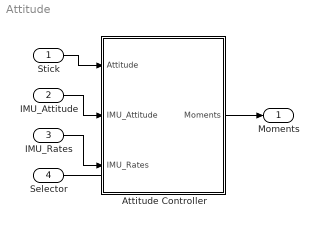
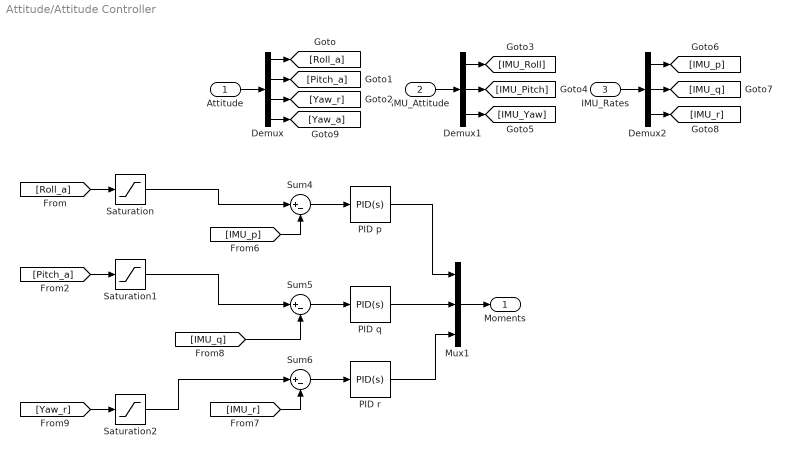
/*
 * Attitude.cpp
 *
 * Academic License - for use in teaching, academic research, and meeting
 * course requirements at degree granting institutions only.  Not for
 * government, commercial, or other organizational use.
 *
 * Code generation for model "Attitude".
 *
 * Model version              : 1.96
 * Simulink Coder version : 8.10 (R2016a) 10-Feb-2016
 * C++ source code generated on : Mon Aug 22 16:24:09 2016
 *
 * Target selection: grt.tlc
 * Note: GRT includes extra infrastructure and instrumentation for prototyping
 * Embedded hardware selection: ARM Compatible->ARM Cortex
 * Code generation objective: Execution efficiency
 * Validation result: Not run
 */

#include "Attitude.h"
#include "Attitude_private.h"

/*
 * This function updates continuous states using the ODE2 fixed-step
 * solver algorithm
 */
void AttitudeModelClass::rt_ertODEUpdateContinuousStates(RTWSolverInfo *si )
{
  time_T tnew = rtsiGetSolverStopTime(si);
  time_T h = rtsiGetStepSize(si);
  real_T *x = rtsiGetContStates(si);
  ODE2_IntgData *id = (ODE2_IntgData *)rtsiGetSolverData(si);
  real_T *y = id->y;
  real_T *f0 = id->f[0];
  real_T *f1 = id->f[1];
  real_T temp;
  int_T i;
  int_T nXc = 6;
  rtsiSetSimTimeStep(si,MINOR_TIME_STEP);

  /* Save the state values at time t in y, we'll use x as ynew. */
  (void) memcpy(y, x,
                (uint_T)nXc*sizeof(real_T));

  /* Assumes that rtsiSetT and ModelOutputs are up-to-date */
  /* f0 = f(t,y) */
  rtsiSetdX(si, f0);
  Attitude_derivatives();

  /* f1 = f(t + h, y + h*f0) */
  for (i = 0; i < nXc; i++) {
    x[i] = y[i] + (h*f0[i]);
  }

  rtsiSetT(si, tnew);
  rtsiSetdX(si, f1);
  this->step();
  Attitude_derivatives();

  /* tnew = t + h
     ynew = y + (h/2)*(f0 + f1) */
  temp = 0.5*h;
  for (i = 0; i < nXc; i++) {
    x[i] = y[i] + temp*(f0[i] + f1[i]);
  }

  rtsiSetSimTimeStep(si,MAJOR_TIME_STEP);
}

/* Model step function */
void AttitudeModelClass::step()
{
  real_T rtb_Sum4;
  real_T rtb_Saturate;
  real_T rtb_Sum;
  real_T rtb_Sum5;
  real_T rtb_Saturate_e;
  real_T rtb_Sum_f;
  real_T rtb_Sum6;
  real_T rtb_Saturate_j0;
  real_T rtb_Sum_a;
  if (rtmIsMajorTimeStep((&Attitude_M))) {
    /* set solver stop time */
    if (!((&Attitude_M)->Timing.clockTick0+1)) {
      rtsiSetSolverStopTime(&(&Attitude_M)->solverInfo, (((&Attitude_M)
        ->Timing.clockTickH0 + 1) * (&Attitude_M)->Timing.stepSize0 *
        4294967296.0));
    } else {
      rtsiSetSolverStopTime(&(&Attitude_M)->solverInfo, (((&Attitude_M)
        ->Timing.clockTick0 + 1) * (&Attitude_M)->Timing.stepSize0 +
        (&Attitude_M)->Timing.clockTickH0 * (&Attitude_M)->Timing.stepSize0 *
        4294967296.0));
    }
  }                                    /* end MajorTimeStep */

  /* Update absolute time of base rate at minor time step */
  if (rtmIsMinorTimeStep((&Attitude_M))) {
    (&Attitude_M)->Timing.t[0] = rtsiGetT(&(&Attitude_M)->solverInfo);
  }

  /* Saturate: '<S1>/Saturation' incorporates:
   *  Inport: '<Root>/Stick'
   */
  if (Attitude_U.Stick[0] > Attitude_P.Saturation_UpperSat) {
    rtb_Sum6 = Attitude_P.Saturation_UpperSat;
  } else if (Attitude_U.Stick[0] < Attitude_P.Saturation_LowerSat) {
    rtb_Sum6 = Attitude_P.Saturation_LowerSat;
  } else {
    rtb_Sum6 = Attitude_U.Stick[0];
  }

  /* Sum: '<S1>/Sum4' incorporates:
   *  Inport: '<Root>/IMU_Rates'
   *  Saturate: '<S1>/Saturation'
   */
  rtb_Sum4 = rtb_Sum6 - Attitude_U.IMU_Rates[0];

  /* Gain: '<S2>/Filter Coefficient' incorporates:
   *  Gain: '<S2>/Derivative Gain'
   *  Integrator: '<S2>/Filter'
   *  Sum: '<S2>/SumD'
   */
  Attitude_B.FilterCoefficient = (Attitude_P.Kdp * rtb_Sum4 -
    Attitude_X.Filter_CSTATE) * Attitude_P.N;

  /* Sum: '<S2>/Sum' incorporates:
   *  Gain: '<S2>/Proportional Gain'
   *  Integrator: '<S2>/Integrator'
   */
  rtb_Sum = (Attitude_P.Kpp * rtb_Sum4 + Attitude_X.Integrator_CSTATE) +
    Attitude_B.FilterCoefficient;

  /* Saturate: '<S2>/Saturate' */
  if (rtb_Sum > Attitude_P.satp) {
    rtb_Saturate = Attitude_P.satp;
  } else if (rtb_Sum < -Attitude_P.satp) {
    rtb_Saturate = -Attitude_P.satp;
  } else {
    rtb_Saturate = rtb_Sum;
  }

  /* End of Saturate: '<S2>/Saturate' */

  /* Saturate: '<S1>/Saturation1' incorporates:
   *  Inport: '<Root>/Stick'
   */
  if (Attitude_U.Stick[1] > Attitude_P.Saturation1_UpperSat) {
    rtb_Sum6 = Attitude_P.Saturation1_UpperSat;
  } else if (Attitude_U.Stick[1] < Attitude_P.Saturation1_LowerSat) {
    rtb_Sum6 = Attitude_P.Saturation1_LowerSat;
  } else {
    rtb_Sum6 = Attitude_U.Stick[1];
  }

  /* Sum: '<S1>/Sum5' incorporates:
   *  Inport: '<Root>/IMU_Rates'
   *  Saturate: '<S1>/Saturation1'
   */
  rtb_Sum5 = rtb_Sum6 - Attitude_U.IMU_Rates[1];

  /* Gain: '<S3>/Filter Coefficient' incorporates:
   *  Gain: '<S3>/Derivative Gain'
   *  Integrator: '<S3>/Filter'
   *  Sum: '<S3>/SumD'
   */
  Attitude_B.FilterCoefficient_b = (Attitude_P.Kdq * rtb_Sum5 -
    Attitude_X.Filter_CSTATE_e) * Attitude_P.N;

  /* Sum: '<S3>/Sum' incorporates:
   *  Gain: '<S3>/Proportional Gain'
   *  Integrator: '<S3>/Integrator'
   */
  rtb_Sum_f = (Attitude_P.Kpq * rtb_Sum5 + Attitude_X.Integrator_CSTATE_f) +
    Attitude_B.FilterCoefficient_b;

  /* Saturate: '<S3>/Saturate' */
  if (rtb_Sum_f > Attitude_P.satq) {
    rtb_Saturate_e = Attitude_P.satq;
  } else if (rtb_Sum_f < -Attitude_P.satq) {
    rtb_Saturate_e = -Attitude_P.satq;
  } else {
    rtb_Saturate_e = rtb_Sum_f;
  }

  /* End of Saturate: '<S3>/Saturate' */

  /* Saturate: '<S1>/Saturation2' incorporates:
   *  Inport: '<Root>/Stick'
   */
  if (Attitude_U.Stick[2] > Attitude_P.Saturation2_UpperSat) {
    rtb_Sum6 = Attitude_P.Saturation2_UpperSat;
  } else if (Attitude_U.Stick[2] < Attitude_P.Saturation2_LowerSat) {
    rtb_Sum6 = Attitude_P.Saturation2_LowerSat;
  } else {
    rtb_Sum6 = Attitude_U.Stick[2];
  }

  /* Sum: '<S1>/Sum6' incorporates:
   *  Inport: '<Root>/IMU_Rates'
   *  Saturate: '<S1>/Saturation2'
   */
  rtb_Sum6 -= Attitude_U.IMU_Rates[2];

  /* Gain: '<S4>/Filter Coefficient' incorporates:
   *  Gain: '<S4>/Derivative Gain'
   *  Integrator: '<S4>/Filter'
   *  Sum: '<S4>/SumD'
   */
  Attitude_B.FilterCoefficient_o = (Attitude_P.Kdr * rtb_Sum6 -
    Attitude_X.Filter_CSTATE_g) * Attitude_P.N;

  /* Sum: '<S4>/Sum' incorporates:
   *  Gain: '<S4>/Proportional Gain'
   *  Integrator: '<S4>/Integrator'
   */
  rtb_Sum_a = (Attitude_P.Kpr * rtb_Sum6 + Attitude_X.Integrator_CSTATE_h) +
    Attitude_B.FilterCoefficient_o;

  /* Saturate: '<S4>/Saturate' */
  if (rtb_Sum_a > Attitude_P.satr) {
    rtb_Saturate_j0 = Attitude_P.satr;
  } else if (rtb_Sum_a < -Attitude_P.satr) {
    rtb_Saturate_j0 = -Attitude_P.satr;
  } else {
    rtb_Saturate_j0 = rtb_Sum_a;
  }

  /* End of Saturate: '<S4>/Saturate' */

  /* Outport: '<Root>/Moments' */
  Attitude_Y.Moments[0] = rtb_Saturate;
  Attitude_Y.Moments[1] = rtb_Saturate_e;
  Attitude_Y.Moments[2] = rtb_Saturate_j0;

  /* Sum: '<S2>/SumI1' incorporates:
   *  Gain: '<S2>/Integral Gain'
   *  Gain: '<S2>/Kb'
   *  Sum: '<S2>/SumI2'
   */
  Attitude_B.SumI1 = (rtb_Saturate - rtb_Sum) * Attitude_P.Kbp + Attitude_P.Kip *
    rtb_Sum4;

  /* Sum: '<S3>/SumI1' incorporates:
   *  Gain: '<S3>/Integral Gain'
   *  Gain: '<S3>/Kb'
   *  Sum: '<S3>/SumI2'
   */
  Attitude_B.SumI1_e = (rtb_Saturate_e - rtb_Sum_f) * Attitude_P.Kbq +
    Attitude_P.Kiq * rtb_Sum5;

  /* Sum: '<S4>/SumI1' incorporates:
   *  Gain: '<S4>/Integral Gain'
   *  Gain: '<S4>/Kb'
   *  Sum: '<S4>/SumI2'
   */
  Attitude_B.SumI1_k = (rtb_Saturate_j0 - rtb_Sum_a) * Attitude_P.Kbr +
    Attitude_P.Kir * rtb_Sum6;
  if (rtmIsMajorTimeStep((&Attitude_M))) {
    rt_ertODEUpdateContinuousStates(&(&Attitude_M)->solverInfo);

    /* Update absolute time for base rate */
    /* The "clockTick0" counts the number of times the code of this task has
     * been executed. The absolute time is the multiplication of "clockTick0"
     * and "Timing.stepSize0". Size of "clockTick0" ensures timer will not
     * overflow during the application lifespan selected.
     * Timer of this task consists of two 32 bit unsigned integers.
     * The two integers represent the low bits Timing.clockTick0 and the high bits
     * Timing.clockTickH0. When the low bit overflows to 0, the high bits increment.
     */
    if (!(++(&Attitude_M)->Timing.clockTick0)) {
      ++(&Attitude_M)->Timing.clockTickH0;
    }

    (&Attitude_M)->Timing.t[0] = rtsiGetSolverStopTime(&(&Attitude_M)
      ->solverInfo);

    {
      /* Update absolute timer for sample time: [0.01s, 0.0s] */
      /* The "clockTick1" counts the number of times the code of this task has
       * been executed. The resolution of this integer timer is 0.01, which is the step size
       * of the task. Size of "clockTick1" ensures timer will not overflow during the
       * application lifespan selected.
       * Timer of this task consists of two 32 bit unsigned integers.
       * The two integers represent the low bits Timing.clockTick1 and the high bits
       * Timing.clockTickH1. When the low bit overflows to 0, the high bits increment.
       */
      (&Attitude_M)->Timing.clockTick1++;
      if (!(&Attitude_M)->Timing.clockTick1) {
        (&Attitude_M)->Timing.clockTickH1++;
      }
    }
  }                                    /* end MajorTimeStep */
}
